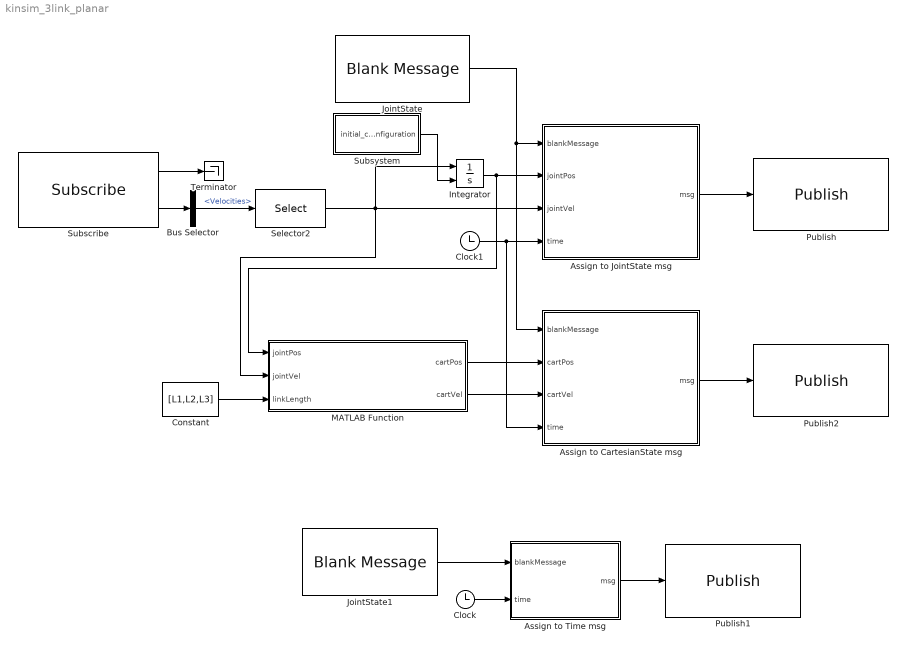
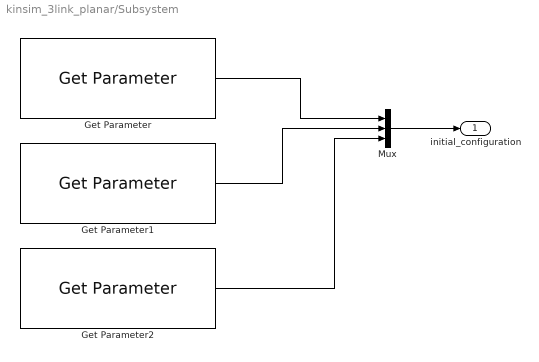
== matlab function kinsim_3link_planar/Assign to Time msg ==
function msg = assign_Time(blankMessage,time)
%#codegen

% Assign the output message to be the same with input blank message
msg = blankMessage;

% Convert and set time
msg.Clock_.Sec  = fix(time);
msg.Clock_.Nsec = fix((time-fix(time))*1e9);

== matlab function kinsim_3link_planar/Assign to JointState msg ==
function msg = assign_JointState(blankMessage,jointPos,jointVel,time)
%#codegen

% Assign the output message to be the same with input blank message
msg = blankMessage;

% Initialize time stamp
msg.Header.Stamp.Sec  = fix(time);
msg.Header.Stamp.Nsec = fix((time-fix(time))*1e9);

% Set the number of strings in the string array, and joint positions/velocities in the position/velocity array
numJoints = length(jointPos);
msg.Name_SL_Info.CurrentLength = uint32(numJoints);
msg.Position_SL_Info.CurrentLength = uint32(numJoints);
msg.Velocity_SL_Info.CurrentLength = uint32(numJoints);

% Set the individual components in the message arrays
strArrayToAssign = {'arm_joint', 'forearm_joint', 'wrist_joint'};

for idx=1:numJoints
    str = strArrayToAssign{idx};
    strLength = length(str);
    msg.Name(idx).Data(1:strLength) = uint8(str);
    msg.Name(idx).Data_SL_Info.CurrentLength = uint32(strLength);

    msg.Position(idx) = jointPos(idx);
    msg.Velocity(idx) = jointVel(idx);
end

== matlab function kinsim_3link_planar/MATLAB Function ==
function [cartPos, cartVel] = forward_kinematics_3link(jointPos,jointVel,linkLength)

cartPos = zeros(1,2);
cartVel = zeros(1,2);

L1 = linkLength(1);
L2 = linkLength(2);
L3 = linkLength(3);
q1 = jointPos(1);
q2 = jointPos(2);
q3 = jointPos(3);
qv1 = jointVel(1);
qv2 = jointVel(2);
qv3 = jointVel(3);

cartPos(1) = L1*cos(q1)+L2*cos(q1+q2)+L3*cos(q1+q2+q3);
cartPos(2) = L1*sin(q1)+L2*sin(q1+q2)+L3*sin(q1+q2+q3);
cartVel(1) = -L1*qv1*sin(q1)-L2*(qv1+qv2)*sin(q1+q2)-L3*(qv1+qv2+qv3)*sin(q1+q2+q3);
cartVel(2) = L1*qv1*cos(q1)+L2*(qv1+qv2)*cos(q1+q2)+L3*(qv1+qv2+qv3)*cos(q1+q2+q3);

== matlab function kinsim_3link_planar/Assign to CartesianState msg ==
function msg = assign_CartesianState(blankMessage,cartPos,cartVel,time)
%#codegen

% Assign the output message to be the same with input blank message
msg = blankMessage;

% Initialize time stamp
msg.Header.Stamp.Sec  = fix(time);
msg.Header.Stamp.Nsec = fix((time-fix(time))*1e9);

% Set the number of strings in the string array, and joint positions/velocities in the position/velocity array
numCoordinates = length(cartPos);
msg.Name_SL_Info.CurrentLength = uint32(numCoordinates);
msg.Position_SL_Info.CurrentLength = uint32(numCoordinates);
msg.Velocity_SL_Info.CurrentLength = uint32(numCoordinates);

% Set the individual components in the message arrays
strArrayToAssign = {'arm_joint', 'forearm_joint', 'wrist_joint'};

for idx=1:numCoordinates
    str = strArrayToAssign{idx};
    strLength = length(str);
    msg.Name(idx).Data(1:strLength) = uint8(str);
    msg.Name(idx).Data_SL_Info.CurrentLength = uint32(strLength);

    msg.Position(idx) = cartPos(idx);
    msg.Velocity(idx) = cartVel(idx);
end

/*
 * kinsim_3link_planar.cpp
 *
 * Academic License - for use in teaching, academic research, and meeting
 * course requirements at degree granting institutions only.  Not for
 * government, commercial, or other organizational use.
 *
 * Code generation for model "kinsim_3link_planar".
 *
 * Model version              : 1.118
 * Simulink Coder version : 9.3 (R2020a) 18-Nov-2019
 * C++ source code generated on : Sun May 10 23:20:12 2020
 *
 * Target selection: ert.tlc
 * Note: GRT includes extra infrastructure and instrumentation for prototyping
 * Embedded hardware selection: Generic->Unspecified (assume 32-bit Generic)
 * Code generation objectives: Unspecified
 * Validation result: Not run
 */

#include "kinsim_3link_planar.h"
#include "kinsim_3link_planar_private.h"

/* Block signals (default storage) */
B_kinsim_3link_planar_T kinsim_3link_planar_B;

/* Continuous states */
X_kinsim_3link_planar_T kinsim_3link_planar_X;

/* Block states (default storage) */
DW_kinsim_3link_planar_T kinsim_3link_planar_DW;

/* Real-time model */
RT_MODEL_kinsim_3link_planar_T kinsim_3link_planar_M_ =
  RT_MODEL_kinsim_3link_planar_T();
RT_MODEL_kinsim_3link_planar_T *const kinsim_3link_planar_M =
  &kinsim_3link_planar_M_;

/* Forward declaration for local functions */
static void kinsim_3link_pl_SystemCore_step(boolean_T *varargout_1, real_T
  varargout_2_Positions[128], uint32_T *varargout_2_Positions_SL_Info_C,
  uint32_T *varargout_2_Positions_SL_Info_R, real_T varargout_2_Velocities[128],
  uint32_T *varargout_2_Velocities_SL_Info_, uint32_T
  *varargout_2_Velocities_SL_Inf_0, real_T varargout_2_Accelerations[128],
  uint32_T *varargout_2_Accelerations_SL_In, uint32_T
  *varargout_2_Accelerations_SL__0, real_T varargout_2_Effort[128], uint32_T
  *varargout_2_Effort_SL_Info_Curr, uint32_T *varargout_2_Effort_SL_Info_Rece,
  real_T *varargout_2_TimeFromStart_Sec, real_T *varargout_2_TimeFromStart_Nsec);
static void matlabCodegenHandle_matlab_d4y2(ros_slros_internal_block_GetP_T *obj);
static void matlabCodegenHandle_matlabC_d4y(ros_slros_internal_block_Subs_T *obj);
static void matlabCodegenHandle_matlabCodeg(ros_slros_internal_block_Publ_T *obj);

/*
 * This function updates continuous states using the ODE3 fixed-step
 * solver algorithm
 */
static void rt_ertODEUpdateContinuousStates(RTWSolverInfo *si )
{
  /* Solver Matrices */
  static const real_T rt_ODE3_A[3] = {
    1.0/2.0, 3.0/4.0, 1.0
  };

  static const real_T rt_ODE3_B[3][3] = {
    { 1.0/2.0, 0.0, 0.0 },

    { 0.0, 3.0/4.0, 0.0 },

    { 2.0/9.0, 1.0/3.0, 4.0/9.0 }
  };

  time_T t = rtsiGetT(si);
  time_T tnew = rtsiGetSolverStopTime(si);
  time_T h = rtsiGetStepSize(si);
  real_T *x = rtsiGetContStates(si);
  ODE3_IntgData *id = static_cast<ODE3_IntgData *>(rtsiGetSolverData(si));
  real_T *y = id->y;
  real_T *f0 = id->f[0];
  real_T *f1 = id->f[1];
  real_T *f2 = id->f[2];
  real_T hB[3];
  int_T i;
  int_T nXc = 3;
  rtsiSetSimTimeStep(si,MINOR_TIME_STEP);

  /* Save the state values at time t in y, we'll use x as ynew. */
  (void) memcpy(y, x,
                static_cast<uint_T>(nXc)*sizeof(real_T));

  /* Assumes that rtsiSetT and ModelOutputs are up-to-date */
  /* f0 = f(t,y) */
  rtsiSetdX(si, f0);
  kinsim_3link_planar_derivatives();

  /* f(:,2) = feval(odefile, t + hA(1), y + f*hB(:,1), args(:)(*)); */
  hB[0] = h * rt_ODE3_B[0][0];
  for (i = 0; i < nXc; i++) {
    x[i] = y[i] + (f0[i]*hB[0]);
  }

  rtsiSetT(si, t + h*rt_ODE3_A[0]);
  rtsiSetdX(si, f1);
  kinsim_3link_planar_step();
  kinsim_3link_planar_derivatives();

  /* f(:,3) = feval(odefile, t + hA(2), y + f*hB(:,2), args(:)(*)); */
  for (i = 0; i <= 1; i++) {
    hB[i] = h * rt_ODE3_B[1][i];
  }

  for (i = 0; i < nXc; i++) {
    x[i] = y[i] + (f0[i]*hB[0] + f1[i]*hB[1]);
  }

  rtsiSetT(si, t + h*rt_ODE3_A[1]);
  rtsiSetdX(si, f2);
  kinsim_3link_planar_step();
  kinsim_3link_planar_derivatives();

  /* tnew = t + hA(3);
     ynew = y + f*hB(:,3); */
  for (i = 0; i <= 2; i++) {
    hB[i] = h * rt_ODE3_B[2][i];
  }

  for (i = 0; i < nXc; i++) {
    x[i] = y[i] + (f0[i]*hB[0] + f1[i]*hB[1] + f2[i]*hB[2]);
  }

  rtsiSetT(si, tnew);
  rtsiSetSimTimeStep(si,MAJOR_TIME_STEP);
}

static void kinsim_3link_pl_SystemCore_step(boolean_T *varargout_1, real_T
  varargout_2_Positions[128], uint32_T *varargout_2_Positions_SL_Info_C,
  uint32_T *varargout_2_Positions_SL_Info_R, real_T varargout_2_Velocities[128],
  uint32_T *varargout_2_Velocities_SL_Info_, uint32_T
  *varargout_2_Velocities_SL_Inf_0, real_T varargout_2_Accelerations[128],
  uint32_T *varargout_2_Accelerations_SL_In, uint32_T
  *varargout_2_Accelerations_SL__0, real_T varargout_2_Effort[128], uint32_T
  *varargout_2_Effort_SL_Info_Curr, uint32_T *varargout_2_Effort_SL_Info_Rece,
  real_T *varargout_2_TimeFromStart_Sec, real_T *varargout_2_TimeFromStart_Nsec)
{
  *varargout_1 = Sub_kinsim_3link_planar_16.getLatestMessage
    (&kinsim_3link_planar_B.b_varargout_2);
  *varargout_2_Positions_SL_Info_C =
    kinsim_3link_planar_B.b_varargout_2.Positions_SL_Info.CurrentLength;
  *varargout_2_Positions_SL_Info_R =
    kinsim_3link_planar_B.b_varargout_2.Positions_SL_Info.ReceivedLength;
  *varargout_2_Velocities_SL_Info_ =
    kinsim_3link_planar_B.b_varargout_2.Velocities_SL_Info.CurrentLength;
  *varargout_2_Velocities_SL_Inf_0 =
    kinsim_3link_planar_B.b_varargout_2.Velocities_SL_Info.ReceivedLength;
  *varargout_2_Accelerations_SL_In =
    kinsim_3link_planar_B.b_varargout_2.Accelerations_SL_Info.CurrentLength;
  *varargout_2_Accelerations_SL__0 =
    kinsim_3link_planar_B.b_varargout_2.Accelerations_SL_Info.ReceivedLength;
  memcpy(&varargout_2_Positions[0],
         &kinsim_3link_planar_B.b_varargout_2.Positions[0], sizeof(real_T) << 7U);
  memcpy(&varargout_2_Velocities[0],
         &kinsim_3link_planar_B.b_varargout_2.Velocities[0], sizeof(real_T) <<
         7U);
  memcpy(&varargout_2_Accelerations[0],
         &kinsim_3link_planar_B.b_varargout_2.Accelerations[0], sizeof(real_T) <<
         7U);
  memcpy(&varargout_2_Effort[0], &kinsim_3link_planar_B.b_varargout_2.Effort[0],
         sizeof(real_T) << 7U);
  *varargout_2_Effort_SL_Info_Curr =
    kinsim_3link_planar_B.b_varargout_2.Effort_SL_Info.CurrentLength;
  *varargout_2_Effort_SL_Info_Rece =
    kinsim_3link_planar_B.b_varargout_2.Effort_SL_Info.ReceivedLength;
  *varargout_2_TimeFromStart_Sec =
    kinsim_3link_planar_B.b_varargout_2.TimeFromStart.Sec;
  *varargout_2_TimeFromStart_Nsec =
    kinsim_3link_planar_B.b_varargout_2.TimeFromStart.Nsec;
}

static void matlabCodegenHandle_matlab_d4y2(ros_slros_internal_block_GetP_T *obj)
{
  if (!obj->matlabCodegenIsDeleted) {
    obj->matlabCodegenIsDeleted = true;
  }
}

static void matlabCodegenHandle_matlabC_d4y(ros_slros_internal_block_Subs_T *obj)
{
  if (!obj->matlabCodegenIsDeleted) {
    obj->matlabCodegenIsDeleted = true;
  }
}

static void matlabCodegenHandle_matlabCodeg(ros_slros_internal_block_Publ_T *obj)
{
  if (!obj->matlabCodegenIsDeleted) {
    obj->matlabCodegenIsDeleted = true;
  }
}

/* Model step function */
void kinsim_3link_planar_step(void)
{
  uint32_T b_varargout_2_Positions_SL_Info;
  uint32_T b_varargout_2_Positions_SL_In_0;
  uint32_T b_varargout_2_Velocities_SL_Inf;
  uint32_T b_varargout_2_Velocities_SL_I_0;
  uint32_T b_varargout_2_Accelerations_SL_;
  uint32_T b_varargout_2_Accelerations_S_0;
  uint32_T b_varargout_2_Effort_SL_Info_Cu;
  uint32_T b_varargout_2_Effort_SL_Info_Re;
  boolean_T b_varargout_1;
  int32_T i;
  real_T tmp;
  real_T tmp_0;
  real_T tmp_1;
  static const char_T b[9] = { 'a', 'r', 'm', '_', 'j', 'o', 'i', 'n', 't' };

  static const char_T c[13] = { 'f', 'o', 'r', 'e', 'a', 'r', 'm', '_', 'j', 'o',
    'i', 'n', 't' };

  static const char_T d[11] = { 'w', 'r', 'i', 's', 't', '_', 'j', 'o', 'i', 'n',
    't' };

  if (rtmIsMajorTimeStep(kinsim_3link_planar_M)) {
    /* set solver stop time */
    if (!(kinsim_3link_planar_M->Timing.clockTick0+1)) {
      rtsiSetSolverStopTime(&kinsim_3link_planar_M->solverInfo,
                            ((kinsim_3link_planar_M->Timing.clockTickH0 + 1) *
        kinsim_3link_planar_M->Timing.stepSize0 * 4294967296.0));
    } else {
      rtsiSetSolverStopTime(&kinsim_3link_planar_M->solverInfo,
                            ((kinsim_3link_planar_M->Timing.clockTick0 + 1) *
        kinsim_3link_planar_M->Timing.stepSize0 +
        kinsim_3link_planar_M->Timing.clockTickH0 *
        kinsim_3link_planar_M->Timing.stepSize0 * 4294967296.0));
    }
  }                                    /* end MajorTimeStep */

  /* Update absolute time of base rate at minor time step */
  if (rtmIsMinorTimeStep(kinsim_3link_planar_M)) {
    kinsim_3link_planar_M->Timing.t[0] = rtsiGetT
      (&kinsim_3link_planar_M->solverInfo);
  }

  /* SignalConversion generated from: '<Root>/Integrator' incorporates:
   *  MATLABSystem: '<S11>/Get Parameter'
   *  MATLABSystem: '<S11>/Get Parameter1'
   *  MATLABSystem: '<S11>/Get Parameter2'
   */
  ParamGet_kinsim_3link_planar_61.get_parameter
    (&kinsim_3link_planar_B.TmpSignalConversionAtIntegrator[0]);
  ParamGet_kinsim_3link_planar_65.get_parameter
    (&kinsim_3link_planar_B.TmpSignalConversionAtIntegrator[1]);
  ParamGet_kinsim_3link_planar_81.get_parameter
    (&kinsim_3link_planar_B.TmpSignalConversionAtIntegrator[2]);

  /* Integrator: '<Root>/Integrator' */
  if (kinsim_3link_planar_DW.Integrator_IWORK != 0) {
    kinsim_3link_planar_X.Integrator_CSTATE[0] =
      kinsim_3link_planar_B.TmpSignalConversionAtIntegrator[0];
    kinsim_3link_planar_X.Integrator_CSTATE[1] =
      kinsim_3link_planar_B.TmpSignalConversionAtIntegrator[1];
    kinsim_3link_planar_X.Integrator_CSTATE[2] =
      kinsim_3link_planar_B.TmpSignalConversionAtIntegrator[2];
  }

  if (rtmIsMajorTimeStep(kinsim_3link_planar_M)) {
    /* Outputs for Atomic SubSystem: '<Root>/Subscribe' */
    /* MATLABSystem: '<S10>/SourceBlock' incorporates:
     *  Inport: '<S12>/In1'
     */
    kinsim_3link_pl_SystemCore_step(&b_varargout_1,
      kinsim_3link_planar_B.b_varargout_2_Positions,
      &b_varargout_2_Positions_SL_Info, &b_varargout_2_Positions_SL_In_0,
      kinsim_3link_planar_B.b_varargout_2_Velocities,
      &b_varargout_2_Velocities_SL_Inf, &b_varargout_2_Velocities_SL_I_0,
      kinsim_3link_planar_B.b_varargout_2_Accelerations,
      &b_varargout_2_Accelerations_SL_, &b_varargout_2_Accelerations_S_0,
      kinsim_3link_planar_B.b_varargout_2_Effort,
      &b_varargout_2_Effort_SL_Info_Cu, &b_varargout_2_Effort_SL_Info_Re,
      &kinsim_3link_planar_B.b_varargout_2_TimeFromStart_Sec,
      &kinsim_3link_planar_B.b_varargout_2_TimeFromStart_Nse);

    /* Outputs for Enabled SubSystem: '<S10>/Enabled Subsystem' incorporates:
     *  EnablePort: '<S12>/Enable'
     */
    if (b_varargout_1) {
      kinsim_3link_planar_B.In1.Positions_SL_Info.CurrentLength =
        b_varargout_2_Positions_SL_Info;
      kinsim_3link_planar_B.In1.Positions_SL_Info.ReceivedLength =
        b_varargout_2_Positions_SL_In_0;
      kinsim_3link_planar_B.In1.Velocities_SL_Info.CurrentLength =
        b_varargout_2_Velocities_SL_Inf;
      kinsim_3link_planar_B.In1.Velocities_SL_Info.ReceivedLength =
        b_varargout_2_Velocities_SL_I_0;
      kinsim_3link_planar_B.In1.Accelerations_SL_Info.CurrentLength =
        b_varargout_2_Accelerations_SL_;
      kinsim_3link_planar_B.In1.Accelerations_SL_Info.ReceivedLength =
        b_varargout_2_Accelerations_S_0;
      memcpy(&kinsim_3link_planar_B.In1.Positions[0],
             &kinsim_3link_planar_B.b_varargout_2_Positions[0], sizeof(real_T) <<
             7U);
      memcpy(&kinsim_3link_planar_B.In1.Velocities[0],
             &kinsim_3link_planar_B.b_varargout_2_Velocities[0], sizeof(real_T) <<
             7U);
      memcpy(&kinsim_3link_planar_B.In1.Accelerations[0],
             &kinsim_3link_planar_B.b_varargout_2_Accelerations[0], sizeof
             (real_T) << 7U);
      memcpy(&kinsim_3link_planar_B.In1.Effort[0],
             &kinsim_3link_planar_B.b_varargout_2_Effort[0], sizeof(real_T) <<
             7U);
      kinsim_3link_planar_B.In1.Effort_SL_Info.CurrentLength =
        b_varargout_2_Effort_SL_Info_Cu;
      kinsim_3link_planar_B.In1.Effort_SL_Info.ReceivedLength =
        b_varargout_2_Effort_SL_Info_Re;
      kinsim_3link_planar_B.In1.TimeFromStart.Sec =
        kinsim_3link_planar_B.b_varargout_2_TimeFromStart_Sec;
      kinsim_3link_planar_B.In1.TimeFromStart.Nsec =
        kinsim_3link_planar_B.b_varargout_2_TimeFromStart_Nse;
    }

    /* End of MATLABSystem: '<S10>/SourceBlock' */
    /* End of Outputs for SubSystem: '<S10>/Enabled Subsystem' */
    /* End of Outputs for SubSystem: '<Root>/Subscribe' */
  }

  /* Clock: '<Root>/Clock1' incorporates:
   *  Clock: '<Root>/Clock'
   */
  kinsim_3link_planar_B.b_varargout_2_TimeFromStart_Sec =
    kinsim_3link_planar_M->Timing.t[0];

  /* MATLAB Function: '<Root>/Assign to CartesianState msg' incorporates:
   *  Clock: '<Root>/Clock1'
   *  Constant: '<S4>/Constant'
   */
  kinsim_3link_planar_B.msg_d = kinsim_3link_planar_P.Constant_Value;
  if (kinsim_3link_planar_B.b_varargout_2_TimeFromStart_Sec < 0.0) {
    /* MATLAB Function: '<Root>/Assign to JointState msg' */
    kinsim_3link_planar_B.b_varargout_2_TimeFromStart_Nse = ceil
      (kinsim_3link_planar_B.b_varargout_2_TimeFromStart_Sec);
  } else {
    /* MATLAB Function: '<Root>/Assign to JointState msg' */
    kinsim_3link_planar_B.b_varargout_2_TimeFromStart_Nse = floor
      (kinsim_3link_planar_B.b_varargout_2_TimeFromStart_Sec);
  }

  kinsim_3link_planar_B.msg_d.Header.Stamp.Sec =
    kinsim_3link_planar_B.b_varargout_2_TimeFromStart_Nse;
  kinsim_3link_planar_B.u =
    (kinsim_3link_planar_B.b_varargout_2_TimeFromStart_Sec -
     kinsim_3link_planar_B.b_varargout_2_TimeFromStart_Nse) * 1.0E+9;
  if (kinsim_3link_planar_B.u < 0.0) {
    /* MATLAB Function: '<Root>/Assign to JointState msg' */
    kinsim_3link_planar_B.u = ceil(kinsim_3link_planar_B.u);
  } else {
    /* MATLAB Function: '<Root>/Assign to JointState msg' */
    kinsim_3link_planar_B.u = floor(kinsim_3link_planar_B.u);
  }

  kinsim_3link_planar_B.msg_d.Header.Stamp.Nsec = kinsim_3link_planar_B.u;
  kinsim_3link_planar_B.msg_d.Name_SL_Info.CurrentLength = 2U;
  kinsim_3link_planar_B.msg_d.Position_SL_Info.CurrentLength = 2U;
  kinsim_3link_planar_B.msg_d.Velocity_SL_Info.CurrentLength = 2U;
  for (i = 0; i < 9; i++) {
    kinsim_3link_planar_B.msg_d.Name[0].Data[i] = static_cast<uint8_T>(b[i]);
  }

  kinsim_3link_planar_B.msg_d.Name[0].Data_SL_Info.CurrentLength = 9U;

  /* MATLAB Function: '<Root>/MATLAB Function' incorporates:
   *  Integrator: '<Root>/Integrator'
   */
  kinsim_3link_planar_B.d1 = cos(kinsim_3link_planar_X.Integrator_CSTATE[0]);
  kinsim_3link_planar_B.d4 = kinsim_3link_planar_X.Integrator_CSTATE[0] +
    kinsim_3link_planar_X.Integrator_CSTATE[1];
  kinsim_3link_planar_B.d2 = cos(kinsim_3link_planar_B.d4);
  tmp = kinsim_3link_planar_B.d4 + kinsim_3link_planar_X.Integrator_CSTATE[2];
  kinsim_3link_planar_B.d3 = cos(tmp);

  /* MATLAB Function: '<Root>/Assign to CartesianState msg' incorporates:
   *  Constant: '<Root>/Constant'
   *  MATLAB Function: '<Root>/MATLAB Function'
   */
  kinsim_3link_planar_B.msg_d.Position[0] =
    (kinsim_3link_planar_P.Constant_Value_m[0] * kinsim_3link_planar_B.d1 +
     kinsim_3link_planar_P.Constant_Value_m[1] * kinsim_3link_planar_B.d2) +
    kinsim_3link_planar_P.Constant_Value_m[2] * kinsim_3link_planar_B.d3;

  /* MATLAB Function: '<Root>/MATLAB Function' incorporates:
   *  Constant: '<Root>/Constant'
   *  Integrator: '<Root>/Integrator'
   */
  kinsim_3link_planar_B.d = sin(kinsim_3link_planar_X.Integrator_CSTATE[0]);
  kinsim_3link_planar_B.d4 = sin(kinsim_3link_planar_B.d4);
  tmp = sin(tmp);
  tmp_0 = kinsim_3link_planar_B.In1.Velocities[0] +
    kinsim_3link_planar_B.In1.Velocities[1];
  tmp_1 = tmp_0 * kinsim_3link_planar_P.Constant_Value_m[1];
  tmp_0 = (tmp_0 + kinsim_3link_planar_B.In1.Velocities[2]) *
    kinsim_3link_planar_P.Constant_Value_m[2];

  /* MATLAB Function: '<Root>/Assign to CartesianState msg' incorporates:
   *  Constant: '<Root>/Constant'
   *  MATLAB Function: '<Root>/MATLAB Function'
   */
  kinsim_3link_planar_B.msg_d.Velocity[0] =
    (-kinsim_3link_planar_P.Constant_Value_m[0] *
     kinsim_3link_planar_B.In1.Velocities[0] * kinsim_3link_planar_B.d - tmp_1 *
     kinsim_3link_planar_B.d4) - tmp_0 * tmp;
  for (i = 0; i < 13; i++) {
    kinsim_3link_planar_B.msg_d.Name[1].Data[i] = static_cast<uint8_T>(c[i]);
  }

  kinsim_3link_planar_B.msg_d.Name[1].Data_SL_Info.CurrentLength = 13U;
  kinsim_3link_planar_B.msg_d.Position[1] =
    (kinsim_3link_planar_P.Constant_Value_m[0] * kinsim_3link_planar_B.d +
     kinsim_3link_planar_P.Constant_Value_m[1] * kinsim_3link_planar_B.d4) +
    kinsim_3link_planar_P.Constant_Value_m[2] * tmp;
  kinsim_3link_planar_B.msg_d.Velocity[1] = (tmp_1 * kinsim_3link_planar_B.d2 +
    kinsim_3link_planar_P.Constant_Value_m[0] *
    kinsim_3link_planar_B.In1.Velocities[0] * kinsim_3link_planar_B.d1) + tmp_0 *
    kinsim_3link_planar_B.d3;

  /* Outputs for Atomic SubSystem: '<Root>/Publish2' */
  /* MATLABSystem: '<S9>/SinkBlock' */
  Pub_kinsim_3link_planar_79.publish(&kinsim_3link_planar_B.msg_d);

  /* End of Outputs for SubSystem: '<Root>/Publish2' */

  /* MATLAB Function: '<Root>/Assign to JointState msg' incorporates:
   *  Constant: '<S4>/Constant'
   *  Integrator: '<Root>/Integrator'
   */
  kinsim_3link_planar_B.msg_d = kinsim_3link_planar_P.Constant_Value;
  kinsim_3link_planar_B.msg_d.Header.Stamp.Sec =
    kinsim_3link_planar_B.b_varargout_2_TimeFromStart_Nse;
  kinsim_3link_planar_B.msg_d.Header.Stamp.Nsec = kinsim_3link_planar_B.u;
  kinsim_3link_planar_B.msg_d.Name_SL_Info.CurrentLength = 3U;
  kinsim_3link_planar_B.msg_d.Position_SL_Info.CurrentLength = 3U;
  kinsim_3link_planar_B.msg_d.Velocity_SL_Info.CurrentLength = 3U;
  for (i = 0; i < 9; i++) {
    kinsim_3link_planar_B.msg_d.Name[0].Data[i] = static_cast<uint8_T>(b[i]);
  }

  kinsim_3link_planar_B.msg_d.Name[0].Data_SL_Info.CurrentLength = 9U;
  kinsim_3link_planar_B.msg_d.Position[0] =
    kinsim_3link_planar_X.Integrator_CSTATE[0];
  kinsim_3link_planar_B.msg_d.Velocity[0] =
    kinsim_3link_planar_B.In1.Velocities[0];
  for (i = 0; i < 13; i++) {
    kinsim_3link_planar_B.msg_d.Name[1].Data[i] = static_cast<uint8_T>(c[i]);
  }

  kinsim_3link_planar_B.msg_d.Name[1].Data_SL_Info.CurrentLength = 13U;
  kinsim_3link_planar_B.msg_d.Position[1] =
    kinsim_3link_planar_X.Integrator_CSTATE[1];
  kinsim_3link_planar_B.msg_d.Velocity[1] =
    kinsim_3link_planar_B.In1.Velocities[1];
  for (i = 0; i < 11; i++) {
    kinsim_3link_planar_B.msg_d.Name[2].Data[i] = static_cast<uint8_T>(d[i]);
  }

  kinsim_3link_planar_B.msg_d.Name[2].Data_SL_Info.CurrentLength = 11U;
  kinsim_3link_planar_B.msg_d.Position[2] =
    kinsim_3link_planar_X.Integrator_CSTATE[2];
  kinsim_3link_planar_B.msg_d.Velocity[2] =
    kinsim_3link_planar_B.In1.Velocities[2];

  /* Outputs for Atomic SubSystem: '<Root>/Publish' */
  /* MATLABSystem: '<S7>/SinkBlock' */
  Pub_kinsim_3link_planar_22.publish(&kinsim_3link_planar_B.msg_d);

  /* End of Outputs for SubSystem: '<Root>/Publish' */

  /* MATLAB Function: '<Root>/Assign to Time msg' */
  if (kinsim_3link_planar_B.b_varargout_2_TimeFromStart_Sec < 0.0) {
    kinsim_3link_planar_B.b_varargout_2_TimeFromStart_Nse = ceil
      (kinsim_3link_planar_B.b_varargout_2_TimeFromStart_Sec);
  } else {
    kinsim_3link_planar_B.b_varargout_2_TimeFromStart_Nse = floor
      (kinsim_3link_planar_B.b_varargout_2_TimeFromStart_Sec);
  }

  kinsim_3link_planar_B.msg_l.Clock_.Sec =
    kinsim_3link_planar_B.b_varargout_2_TimeFromStart_Nse;
  kinsim_3link_planar_B.u =
    (kinsim_3link_planar_B.b_varargout_2_TimeFromStart_Sec -
     kinsim_3link_planar_B.b_varargout_2_TimeFromStart_Nse) * 1.0E+9;
  if (kinsim_3link_planar_B.u < 0.0) {
    kinsim_3link_planar_B.msg_l.Clock_.Nsec = ceil(kinsim_3link_planar_B.u);
  } else {
    kinsim_3link_planar_B.msg_l.Clock_.Nsec = floor(kinsim_3link_planar_B.u);
  }

  /* End of MATLAB Function: '<Root>/Assign to Time msg' */

  /* Outputs for Atomic SubSystem: '<Root>/Publish1' */
  /* MATLABSystem: '<S8>/SinkBlock' */
  Pub_kinsim_3link_planar_50.publish(&kinsim_3link_planar_B.msg_l);

  /* End of Outputs for SubSystem: '<Root>/Publish1' */
  if (rtmIsMajorTimeStep(kinsim_3link_planar_M)) {
    /* Update for Integrator: '<Root>/Integrator' */
    kinsim_3link_planar_DW.Integrator_IWORK = 0;
  }                                    /* end MajorTimeStep */

  if (rtmIsMajorTimeStep(kinsim_3link_planar_M)) {
    rt_ertODEUpdateContinuousStates(&kinsim_3link_planar_M->solverInfo);

    /* Update absolute time for base rate */
    /* The "clockTick0" counts the number of times the code of this task has
     * been executed. The absolute time is the multiplication of "clockTick0"
     * and "Timing.stepSize0". Size of "clockTick0" ensures timer will not
     * overflow during the application lifespan selected.
     * Timer of this task consists of two 32 bit unsigned integers.
     * The two integers represent the low bits Timing.clockTick0 and the high bits
     * Timing.clockTickH0. When the low bit overflows to 0, the high bits increment.
     */
    if (!(++kinsim_3link_planar_M->Timing.clockTick0)) {
      ++kinsim_3link_planar_M->Timing.clockTickH0;
    }

    kinsim_3link_planar_M->Timing.t[0] = rtsiGetSolverStopTime
      (&kinsim_3link_planar_M->solverInfo);

    {
      /* Update absolute timer for sample time: [0.001s, 0.0s] */
      /* The "clockTick1" counts the number of times the code of this task has
       * been executed. The resolution of this integer timer is 0.001, which is the step size
       * of the task. Size of "clockTick1" ensures timer will not overflow during the
       * application lifespan selected.
       * Timer of this task consists of two 32 bit unsigned integers.
       * The two integers represent the low bits Timing.clockTick1 and the high bits
       * Timing.clockTickH1. When the low bit overflows to 0, the high bits increment.
       */
      kinsim_3link_planar_M->Timing.clockTick1++;
      if (!kinsim_3link_planar_M->Timing.clockTick1) {
        kinsim_3link_planar_M->Timing.clockTickH1++;
      }
    }
  }                                    /* end MajorTimeStep */
}
